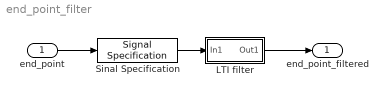
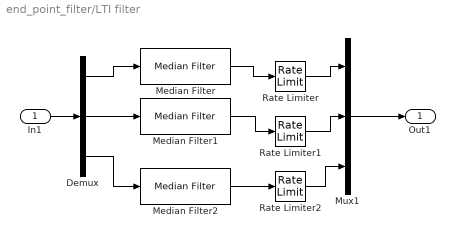
//
// File: end_point_filter.cpp
//
// Code generated for Simulink model 'end_point_filter'.
//
// Model version                  : 1.142
// Simulink Coder version         : 8.11 (R2016b) 25-Aug-2016
// C/C++ source code generated on : Sun Jun  9 11:45:23 2019
//
// Target selection: ert.tlc
// Embedded hardware selection: Intel->x86-64 (Windows64)
// Code generation objectives: Unspecified
// Validation result: Not run
//
#include "end_point_filter.h"

extern real_T PadBSymm_uD(const real_T u[], const int32_T uStride[], int32_T
  idx[], const int32_T uDims[], const int32_T uStart[], const int32_T uEnd[],
  const int32_T sNumPreEdges, const int32_T sPreEdges[], const int32_T
  sNumPostEdges, const int32_T sPostEdges[]);
extern void MdnFltH15_M_BSymm_uD_yD(const int32_T hLoc[], const int32_T hDims[],
  const real_T u[], const int32_T uDims[], real_T y[], const int32_T yDims[],
  const int32_T yOrigin[]);
real_T PadBSymm_uD(const real_T u[], const int32_T uStride[], int32_T idx[],
                   const int32_T uDims[], const int32_T uStart[], const int32_T
                   uEnd[], const int32_T sNumPreEdges, const int32_T sPreEdges[],
                   const int32_T sNumPostEdges, const int32_T sPostEdges[])
{
  real_T uOut;
  int32_T edgeNum;
  int32_T idxI;

  // S-Function (svipmdnfilter): '<S1>/Median Filter'
  // For boundary sectors:
  // -check if index is outside of input bounds ...
  //   -if so then return pad extended value
  //   -else fetch input data at the index
  // loop through preEdges
  for (edgeNum = 0; edgeNum < sNumPreEdges; edgeNum++) {
    if (idx[sPreEdges[edgeNum]] < uStart[sPreEdges[edgeNum]]) {
      // redirect index across a pre edge
      // reflect across pre-edge
      // check if it is a case of multiple reflections
      // get modulo distance
      idxI = ((uStart[sPreEdges[edgeNum]] - idx[sPreEdges[edgeNum]]) - 1) %
        (uDims[sPreEdges[edgeNum]] << 1);

      // if distance<dim then index is safe to be reflected
      if (idxI < uDims[sPreEdges[edgeNum]]) {
        idxI += uStart[sPreEdges[edgeNum]];

        // else d%dim is reflected across opposite edge
      } else {
        idxI = uEnd[sPreEdges[edgeNum]] - idxI % uDims[sPreEdges[edgeNum]];
      }

      idx[sPreEdges[edgeNum]] = idxI;
    }
  }

  // loop through postEdges
  for (edgeNum = 0; edgeNum < sNumPostEdges; edgeNum++) {
    if (idx[sPostEdges[edgeNum]] > uEnd[sPostEdges[edgeNum]]) {
      // redirect index across a post edge
      // reflect across post-edge
      // check if it is a case of multiple reflections
      // get modulo distance
      idxI = ((idx[sPostEdges[edgeNum]] - uEnd[sPostEdges[edgeNum]]) - 1) %
        (uDims[sPostEdges[edgeNum]] << 1);

      // if distance<dim then index is safe to be reflected
      if (idxI < uDims[sPostEdges[edgeNum]]) {
        idxI = uEnd[sPostEdges[edgeNum]] - idxI;

        // else d%dim is reflected across opposite edge
      } else {
        idxI = idxI % uDims[sPostEdges[edgeNum]] + uStart[sPostEdges[edgeNum]];
      }

      idx[sPostEdges[edgeNum]] = idxI;
    }
  }

  // linearize index and return input data
  uOut = u[idx[0U] * uStride[0U] + idx[1U] * uStride[1U]];

  // End of S-Function (svipmdnfilter): '<S1>/Median Filter'
  return uOut;
}

void MdnFltH15_M_BSymm_uD_yD(const int32_T hLoc[], const int32_T hDims[], const
  real_T u[], const int32_T uDims[], real_T y[], const int32_T yDims[], const
  int32_T yOrigin[])
{
  real_T acc;
  real_T uW[15];
  real_T pivot;
  int32_T uOrigin[2];
  int32_T uEnd[2];
  int32_T uStride[2];
  int32_T hEnd[2];
  int32_T yEnd[2];
  int32_T mLoc[10];
  int32_T mWidth[10];
  int32_T hPre;
  int32_T hPost;
  int32_T bPreEnd;
  int32_T bPostEnd;
  int32_T sStart[2];
  int32_T sEnd[2];
  int32_T sPreEdges[2];
  int32_T sPostEdges[2];
  int32_T c[2];
  int8_T o[5];
  boolean_T isEnd;
  boolean_T isSEmpty;
  boolean_T dimIsPre;
  int32_T offset[2];
  int32_T idxA[2];
  int32_T idxB[2];
  int32_T idxBLin[2];
  int32_T hIdxA[2];
  int32_T hIdxB[2];
  int32_T order;
  int32_T left;
  int32_T right;
  int32_T mid;
  int32_T rightIdx;
  real_T temp;

  // S-Function (svipmdnfilter): '<S1>/Median Filter'
  uOrigin[0U] = 0;
  uEnd[0U] = uDims[0U] - 1;
  uStride[0U] = 1;
  uOrigin[1U] = 0;
  uEnd[1U] = uDims[1U] - 1;
  uStride[1U] = uDims[0U];
  hEnd[0U] = hDims[0U] - 1;
  hEnd[1U] = hDims[1U] - 1;
  yEnd[0U] = yDims[0U] - 1;
  yEnd[1U] = yDims[1U] - 1;

  //  COMPUTE MARGINS BETWEEN INPUT AND OUTPUT
  // ===============================================
  //      _________________________________________
  //     |u                                        |
  //     |                                         |
  //     |         ______________________          |
  //     |        |y                     |         |
  //     |        |                      |         |
  //     |<-yPre->|                      |<-yPost->|
  //     |        |                      |         |
  //
  //  KERNEL MARIGINS
  // ==============================================
  //      ____________________
  //     |h                   |
  //     |        |<--hPost-->|
  //     |        |           |
  //     |        x(hCenter)  |
  //     |<-hPre->|           |
  //     |        |           |
  //
  //  MARGINS (Valid, Boundary and Outside) definitions:
  //  Valid Margin: Processing region where entire kernel stays inside input boundaries. All input data thus considered is 'valid' data 
  //  Boundary Margin: Processing region where part of kernel stays inside the input boundaries and part of it goes outside input boundaries. 
  //  Outside Margin: Processing region where entire kernel stays outside the input boundaries and never touches input data. In most situations this region does not need to be processed. Instead output pad values are filled in 
  // ===========================================================
  //   y |        |        |               |         |         |
  //     |<-oPre->|<-bPre->|<----valid---->|<-bPost->|<-oPost->|
  //     |        |        |               |         |         |
  //
  //  All margin locations are stored relative to the output origin
  // margins between y and u
  right = -yOrigin[0];
  mid = (yOrigin[0] + yEnd[0]) - uEnd[0];

  // margins caused by kernel - defined by center location
  // hLoc and hEnd are defined relative to origin
  hPre = -hLoc[0];
  hPost = hLoc[0] + hEnd[0];

  // margins outside of kernel's influence around input
  // note that we subtract h'Post' from y'Pre'
  rightIdx = right - hPost;

  // note that we subtract h'Pre' from y'Post'
  left = mid - hPre;
  hPre += right;
  hPost += mid;

  // W refers to margin Width
  // L refers to margin Location
  // outer Pre
  // saturate
  if (rightIdx < 0) {
    right = 0;
  } else if (rightIdx > yDims[0]) {
    right = yDims[0];
  } else {
    right = rightIdx;
  }

  // boundary Pre
  // saturate
  if (hPre < 0) {
    hPre = 0;
  } else {
    if (hPre > yDims[0]) {
      hPre = yDims[0];
    }
  }

  if (rightIdx < 0) {
    rightIdx = 0;
  } else {
    if (rightIdx > yDims[0]) {
      rightIdx = yDims[0];
    }
  }

  mid = hPre - rightIdx;
  rightIdx = yOrigin[0] + right;

  // outer Post
  // saturate
  if (left < 0) {
    hPre = 0;
  } else if (left > yDims[0]) {
    hPre = yDims[0];
  } else {
    hPre = left;
  }

  order = ((yOrigin[0] + yEnd[0]) - hPre) + 1;

  // boundary Post
  // saturate
  if (hPost < 0) {
    hPost = 0;
  } else {
    if (hPost > yDims[0]) {
      hPost = yDims[0];
    }
  }

  if (left < 0) {
    left = 0;
  } else {
    if (left > yDims[0]) {
      left = yDims[0];
    }
  }

  left = hPost - left;
  hPost = order - left;
  bPreEnd = rightIdx + mid;
  bPostEnd = hPost + left;
  if (bPreEnd - 1 >= hPost) {
    // defines situation where hDims > uDims
    mid = hPost - rightIdx;
    hPost = bPreEnd;
    left = bPostEnd - bPreEnd;
  }

  // assign to the margin set of mLoc and mWidth
  mLoc[0] = rightIdx + mid;
  mWidth[0] = (((yDims[0] - right) - hPre) - mid) - left;
  mLoc[2] = rightIdx;
  mWidth[2] = mid;
  mLoc[4] = hPost;
  mWidth[4] = left;
  mLoc[6] = yOrigin[0];
  mWidth[6] = right;
  mLoc[8] = order;
  mWidth[8] = hPre;

  // margins between y and u
  right = -yOrigin[1];
  mid = (yOrigin[1] + yEnd[1]) - uEnd[1];

  // margins caused by kernel - defined by center location
  // hLoc and hEnd are defined relative to origin
  hPre = -hLoc[1];
  hPost = hLoc[1] + hEnd[1];

  // margins outside of kernel's influence around input
  // note that we subtract h'Post' from y'Pre'
  rightIdx = right - hPost;

  // note that we subtract h'Pre' from y'Post'
  left = mid - hPre;
  hPre += right;
  hPost += mid;

  // W refers to margin Width
  // L refers to margin Location
  // outer Pre
  // saturate
  if (rightIdx < 0) {
    right = 0;
  } else if (rightIdx > yDims[1]) {
    right = yDims[1];
  } else {
    right = rightIdx;
  }

  // boundary Pre
  // saturate
  if (hPre < 0) {
    hPre = 0;
  } else {
    if (hPre > yDims[1]) {
      hPre = yDims[1];
    }
  }

  if (rightIdx < 0) {
    rightIdx = 0;
  } else {
    if (rightIdx > yDims[1]) {
      rightIdx = yDims[1];
    }
  }

  mid = hPre - rightIdx;
  rightIdx = yOrigin[1] + right;

  // outer Post
  // saturate
  if (left < 0) {
    hPre = 0;
  } else if (left > yDims[1]) {
    hPre = yDims[1];
  } else {
    hPre = left;
  }

  order = ((yOrigin[1] + yEnd[1]) - hPre) + 1;

  // boundary Post
  // saturate
  if (hPost < 0) {
    hPost = 0;
  } else {
    if (hPost > yDims[1]) {
      hPost = yDims[1];
    }
  }

  if (left < 0) {
    left = 0;
  } else {
    if (left > yDims[1]) {
      left = yDims[1];
    }
  }

  left = hPost - left;
  hPost = order - left;
  bPreEnd = rightIdx + mid;
  bPostEnd = hPost + left;
  if (bPreEnd - 1 >= hPost) {
    // defines situation where hDims > uDims
    mid = hPost - rightIdx;
    hPost = bPreEnd;
    left = bPostEnd - bPreEnd;
  }

  // assign to the margin set of mLoc and mWidth
  mLoc[1] = rightIdx + mid;
  mWidth[1] = (((yDims[1] - right) - hPre) - mid) - left;
  mLoc[3] = rightIdx;
  mWidth[3] = mid;
  mLoc[5] = hPost;
  mWidth[5] = left;
  mLoc[7] = yOrigin[1];
  mWidth[7] = right;
  mLoc[9] = order;
  mWidth[9] = hPre;

  //  //////////////////////////////////////////
  //  COMPUTE ON-BOUNDARY SECTORS
  //  //////////////////////////////////////////
  // ===========================================
  //   |   0   |   1   |   2   |   3   |   4   |
  //   | Inside| BndPre|BndPost| OutPre|OutPost|
  //    _______________________________________
  //   |       |///////|///////|       |       |
  //   | VALID |///////|///////|       |       |
  //  0| (0,0) |/(0,1)/|/(0,2)/| (0,3) | (0,4) |
  //   |       |///////|///////|       |       |
  //    _______________________________________
  //   |///////|///////|///////|       |       |
  //  1|/(1,0)/|/(1,1)/|/(1,2)/| (1,3) | (1,4) |
  //   |///////|///////|///////|       |       |
  //    _______________________________________
  //   |///////|///////|///////|       |       |
  //  2|/(2,0)/|/(2,1)/|/(2,2)/| (2,3) | (2,4) |
  //   |///////|///////|///////|       |       |
  //    _______________________________________
  //   |       |       |       |       |       |
  //  3| (3,0) | (3,1) | (3,2) | (3,3) | (3,4) |
  //   |       |       |       |       |       |
  //    _______________________________________
  //   |       |       |       |       |       |
  //  4| (4,0) | (4,1) | (4,2) | (4,3) | (4,4) |
  //   |       |       |       |       |       |
  //    ---------------------------------------
  o[0U] = 0;
  o[1U] = 1;
  o[2U] = 2;
  o[3U] = 3;
  o[4U] = 4;
  isEnd = false;
  c[0U] = 0;
  c[1U] = 0;

  // if hDims < uDims then the all INSIDE sector will not be pushed into the boundary sectors... hence the counter needs to skip the all INSIDEs sector and start from one sector down. 
  while (!isEnd) {
    hPre = 0;
    hPost = 0;

    // compute on-boundary sector
    // compute sector if not empty
    if (!((mWidth[o[c[0U]] << 1] <= 0) || (mWidth[(o[c[1U]] << 1) + 1] <= 0))) {
      // compute sector for this dim
      // sector start corresponds to margin loc
      // apply offset of margin width for sector end
      // Inside Sector if 0 in all dimensions
      isSEmpty = (o[c[0]] == 0);
      dimIsPre = ((o[c[0]] == 3) || (o[c[0]] == 1));
      if (dimIsPre || isSEmpty) {
        sPreEdges[0] = 0;
        hPre = 1;
      }

      if ((!(dimIsPre || isSEmpty)) || isSEmpty) {
        sPostEdges[0] = 0;
        hPost = 1;
      }

      // compute sector for this dim
      // sector start corresponds to margin loc
      // apply offset of margin width for sector end
      // Inside Sector if 0 in all dimensions
      isSEmpty = (o[c[1]] == 0);
      dimIsPre = ((o[c[1]] == 3) || (o[c[1]] == 1));
      if (dimIsPre || isSEmpty) {
        sPreEdges[hPre] = 1;
        hPre++;
      }

      if ((!(dimIsPre || isSEmpty)) || isSEmpty) {
        sPostEdges[hPost] = 1;
        hPost++;
      }

      // setup indices for the loops
      // Origin stores the origin of Y with respect to U
      //  where the origin of Y is at its top left corner
      // Compute offset between origin of Y and origin of U(0,0)
      offset[0U] = -yOrigin[0U];
      offset[1U] = -yOrigin[1U];

      // sector start and end were computed relative to U
      // make them relative to Y by adding offset
      sStart[0U] = mLoc[o[c[0]] << 1] + offset[0U];
      sEnd[0U] = ((mLoc[o[c[0]] << 1] + mWidth[o[c[0]] << 1]) + offset[0U]) - 1;
      sStart[1U] = mLoc[(o[c[1]] << 1) + 1] + offset[1U];
      sEnd[1U] = ((mLoc[(o[c[1]] << 1) + 1] + mWidth[(o[c[1]] << 1) + 1]) +
                  offset[1U]) - 1;

      // adjust offset for kernel center
      offset[0U] -= hLoc[0U];
      offset[1U] -= hLoc[1U];

      // loop kernel over data
      idxB[1U] = sStart[1U];
      while (idxB[1U] <= sEnd[1U]) {
        idxA[1U] = idxB[1U] - offset[1U];
        idxBLin[1U] = yDims[0U] * idxB[1U];
        idxB[0U] = sStart[0U];
        while (idxB[0U] <= sEnd[0U]) {
          idxA[0U] = idxB[0U] - offset[0U];
          idxBLin[0U] = idxBLin[1U] + idxB[0U];

          // loop over kernel and compute conv/corr
          bPreEnd = 0;

          // loop over kernel
          hIdxA[1U] = 0;
          while (hIdxA[1U] <= hEnd[1U]) {
            hIdxB[1U] = idxA[1U] + hIdxA[1U];
            hIdxA[0U] = 0;
            while (hIdxA[0U] <= hEnd[0U]) {
              hIdxB[0U] = idxA[0U] + hIdxA[0U];
              temp = PadBSymm_uD(&u[0U], &uStride[0U], &hIdxB[0U], &uDims[0U],
                                 &uOrigin[0U], &uEnd[0U], hPre, &sPreEdges[0U],
                                 hPost, &sPostEdges[0U]);

              // cache away u for the window
              uW[bPreEnd] = temp;
              bPreEnd++;
              hIdxA[0U]++;
            }

            hIdxA[1U]++;
          }

          bPreEnd = hDims[0U] * hDims[1U] - 1;
          order = ((bPreEnd + 2) >> 1) - 1;
          if ((bPreEnd + 1) % 2 == 0) {
            // Perform the scanning only if the current partition has
            // at least three elements.
            left = 0;
            right = bPreEnd;
            while (right > left + 1) {
              // Use the median of the three values as the partitioning key
              // Use median-of-three method to return the partitioning key (pivot). 
              // This method makes worst-case behavior much less likely and
              // avoids the needs for sentinel values outside the array.
              // //////////////////////////////////////////////////////////////////// 
              // First we sort the first, middle, and last element of the partition. 
              mid = (left + right) >> 1;
              if (uW[left] > uW[mid]) {
                temp = uW[left];
                uW[left] = uW[mid];
                uW[mid] = temp;
              }

              if (uW[left] > uW[right]) {
                temp = uW[left];
                uW[left] = uW[right];
                uW[right] = temp;
              }

              if (uW[mid] > uW[right]) {
                temp = uW[mid];
                uW[mid] = uW[right];
                uW[right] = temp;
              }

              // //////////////////////////////////////////////////////////////////// 
              // Now swap the middle value with the next-to-last value.
              temp = uW[mid];
              uW[mid] = uW[right - 1];
              uW[right - 1] = temp;

              // return pivot for partitioning
              pivot = uW[right - 1];

              // Start the partitioning scan.  Note that because we sorted
              // the left and right values, we can start the comparisons
              // with (left+1) and (right-2).  This is how we avoid the
              // need for sentinel values.
              mid = left;
              rightIdx = right - 1;
              isSEmpty = true;
              while (isSEmpty) {
                do {
                  mid++;
                } while (uW[mid] < pivot);

                do {
                  rightIdx--;
                } while (uW[rightIdx] > pivot);

                // pointers crossed -> end scan
                if (mid >= rightIdx) {
                  isSEmpty = false;
                } else {
                  // Swap values at end of current interval.
                  temp = uW[mid];
                  uW[mid] = uW[rightIdx];
                  uW[rightIdx] = temp;
                }
              }

              // One last swap needed at end of scan
              temp = uW[mid];
              uW[mid] = uW[right - 1];
              uW[right - 1] = temp;

              // Select the left or right subpartition depending on
              // the value of order.
              if (mid >= order) {
                right = mid - 1;
              }

              if (mid <= order) {
                left = mid + 1;
              }
            }

            if ((right - left == 1) && (uW[left] > uW[right])) {
              // Last partition has two elements that may not be sorted.
              temp = uW[left];
              uW[left] = uW[right];
              uW[right] = temp;
            }

            acc = uW[order];

            // Perform the scanning only if the current partition has
            // at least three elements.
            left = 0;
            right = bPreEnd;
            while (right > left + 1) {
              // Use the median of the three values as the partitioning key
              // Use median-of-three method to return the partitioning key (pivot). 
              // This method makes worst-case behavior much less likely and
              // avoids the needs for sentinel values outside the array.
              // //////////////////////////////////////////////////////////////////// 
              // First we sort the first, middle, and last element of the partition. 
              mid = (left + right) >> 1;
              if (uW[left] > uW[mid]) {
                temp = uW[left];
                uW[left] = uW[mid];
                uW[mid] = temp;
              }

              if (uW[left] > uW[right]) {
                temp = uW[left];
                uW[left] = uW[right];
                uW[right] = temp;
              }

              if (uW[mid] > uW[right]) {
                temp = uW[mid];
                uW[mid] = uW[right];
                uW[right] = temp;
              }

              // //////////////////////////////////////////////////////////////////// 
              // Now swap the middle value with the next-to-last value.
              temp = uW[mid];
              uW[mid] = uW[right - 1];
              uW[right - 1] = temp;

              // return pivot for partitioning
              pivot = uW[right - 1];

              // Start the partitioning scan.  Note that because we sorted
              // the left and right values, we can start the comparisons
              // with (left+1) and (right-2).  This is how we avoid the
              // need for sentinel values.
              mid = left;
              rightIdx = right - 1;
              isSEmpty = true;
              while (isSEmpty) {
                do {
                  mid++;
                } while (uW[mid] < pivot);

                do {
                  rightIdx--;
                } while (uW[rightIdx] > pivot);

                // pointers crossed -> end scan
                if (mid >= rightIdx) {
                  isSEmpty = false;
                } else {
                  // Swap values at end of current interval.
                  temp = uW[mid];
                  uW[mid] = uW[rightIdx];
                  uW[rightIdx] = temp;
                }
              }

              // One last swap needed at end of scan
              temp = uW[mid];
              uW[mid] = uW[right - 1];
              uW[right - 1] = temp;

              // Select the left or right subpartition depending on
              // the value of order.
              if (mid >= order + 1) {
                right = mid - 1;
              }

              if (mid <= order + 1) {
                left = mid + 1;
              }
            }

            if ((right - left == 1) && (uW[left] > uW[right])) {
              // Last partition has two elements that may not be sorted.
              temp = uW[left];
              uW[left] = uW[right];
              uW[right] = temp;
            }

            acc += uW[order + 1];
            acc /= 2.0;
          } else {
            // Perform the scanning only if the current partition has
            // at least three elements.
            left = 0;
            right = bPreEnd;
            while (right > left + 1) {
              // Use the median of the three values as the partitioning key
              // Use median-of-three method to return the partitioning key (pivot). 
              // This method makes worst-case behavior much less likely and
              // avoids the needs for sentinel values outside the array.
              // //////////////////////////////////////////////////////////////////// 
              // First we sort the first, middle, and last element of the partition. 
              mid = (left + right) >> 1;
              if (uW[left] > uW[mid]) {
                temp = uW[left];
                uW[left] = uW[mid];
                uW[mid] = temp;
              }

              if (uW[left] > uW[right]) {
                temp = uW[left];
                uW[left] = uW[right];
                uW[right] = temp;
              }

              if (uW[mid] > uW[right]) {
                temp = uW[mid];
                uW[mid] = uW[right];
                uW[right] = temp;
              }

              // //////////////////////////////////////////////////////////////////// 
              // Now swap the middle value with the next-to-last value.
              temp = uW[mid];
              uW[mid] = uW[right - 1];
              uW[right - 1] = temp;

              // return pivot for partitioning
              pivot = uW[right - 1];

              // Start the partitioning scan.  Note that because we sorted
              // the left and right values, we can start the comparisons
              // with (left+1) and (right-2).  This is how we avoid the
              // need for sentinel values.
              mid = left;
              rightIdx = right - 1;
              isSEmpty = true;
              while (isSEmpty) {
                do {
                  mid++;
                } while (uW[mid] < pivot);

                do {
                  rightIdx--;
                } while (uW[rightIdx] > pivot);

                // pointers crossed -> end scan
                if (mid >= rightIdx) {
                  isSEmpty = false;
                } else {
                  // Swap values at end of current interval.
                  temp = uW[mid];
                  uW[mid] = uW[rightIdx];
                  uW[rightIdx] = temp;
                }
              }

              // One last swap needed at end of scan
              temp = uW[mid];
              uW[mid] = uW[right - 1];
              uW[right - 1] = temp;

              // Select the left or right subpartition depending on
              // the value of order.
              if (mid >= order) {
                right = mid - 1;
              }

              if (mid <= order) {
                left = mid + 1;
              }
            }

            if ((right - left == 1) && (uW[left] > uW[right])) {
              // Last partition has two elements that may not be sorted.
              temp = uW[left];
              uW[left] = uW[right];
              uW[right] = temp;
            }

            acc = uW[order];
          }

          if (idxBLin[0U] >= 0) {
            y[idxBLin[0U]] = acc;
          }

          idxB[0U]++;
        }

        idxB[1U]++;
      }
    }

    // advance sector counter
    hPre = 0;
    while (hPre < 2) {
      c[hPre]++;
      if (c[hPre] <= 2) {
        isEnd = false;
        hPre = 2;
      } else {
        c[hPre] = 0;
        isEnd = true;
      }

      hPre++;
    }
  }

  // End of S-Function (svipmdnfilter): '<S1>/Median Filter'
}

// Model step function
void end_poing_filter::step(real_T (&arg_end_point)[3], real_T
  (&arg_end_point_filtered)[3])
{
  int32_T h1Dims[2];
  int32_T uDims[2];
  int32_T yDims[2];
  int32_T hLoc[2];
  int32_T yOrigin[2];
  real_T rateLimiterRate;
  int32_T h1Dims_0[2];
  int32_T uDims_0[2];
  int32_T yDims_0[2];
  int32_T hLoc_0[2];
  int32_T yOrigin_0[2];
  int32_T h1Dims_1[2];
  int32_T uDims_1[2];
  int32_T yDims_1[2];
  int32_T hLoc_1[2];
  int32_T yOrigin_1[2];
  real_T rtb_RateLimiter2;
  real_T rtb_RateLimiter1;
  real_T rtb_RateLimiter;

  // S-Function (svipmdnfilter): '<S1>/Median Filter' incorporates:
  //   Inport: '<Root>/end_point'

  h1Dims[0U] = 5;
  h1Dims[1U] = 3;
  uDims[0U] = 1;
  uDims[1U] = 1;

  // set up kernel related coordinates
  // compute center
  // hLoc is the location of top left corner relative to the center of kernel.
  hLoc[0U] = -2;

  // compute center
  // hLoc is the location of top left corner relative to the center of kernel.
  hLoc[1U] = -1;

  // Region of Support (ROS) definition: A selected region that restricts the input space for processing. 
  // ======================================================
  //                       ---------------------
  //                      |ROI                  |
  //                      |                     |
  //  ----------------------------------------------------
  // | INPUT(u)           |                     |         |
  // |                    |                     |         |
  // |   ---------------------------------------------    |
  // |  | ROS             |OUTPUT(y)////////////|     |   |
  // |  |                 |/////////////////////|     |   |
  // |  |                  ---------------------      |   |
  // |  |                                             |   |
  // The user's output mode choices of 'Valid', 'Same as input' and 'Full' map onto correspending definitions of a rectangular ROS. 
  // Output range support is computed as an intersection of ROS with Region of Interest (ROI) 
  // /////////////////////
  // begin ROS computation
  // compute ROS based on u, h and output mode
  // ROS is SAME AS INPUT
  // end ROS computation
  // ///////////////////
  // /////////////////////////
  // begin y sizes computation
  // we need to compute yOrigin and yEnd
  // yOrigin definition: Location of center of reference (origin) of output (y) coordintate system with respect to input (u) coordinate system 
  // y sizes are same as ros sizes because there is no ROI
  yOrigin[0U] = 0;
  yDims[0U] = 1;

  // y sizes are same as ros sizes because there is no ROI
  yOrigin[1U] = 0;
  yDims[1U] = 1;

  // make yOrigin same as roiLoc when y is empty
  // end y sizes computation
  // ///////////////////////
  MdnFltH15_M_BSymm_uD_yD(&hLoc[0U], &h1Dims[0U], &arg_end_point[0], &uDims[0U],
    &rtb_RateLimiter, &yDims[0U], &yOrigin[0U]);

  // RateLimiter: '<S1>/Rate Limiter'
  rateLimiterRate = rtb_RateLimiter - end_point_filter_DW.PrevY;
  if (rateLimiterRate > 0.0008) {
    rtb_RateLimiter = end_point_filter_DW.PrevY + 0.0008;
  } else {
    if (rateLimiterRate < -0.0008) {
      rtb_RateLimiter = end_point_filter_DW.PrevY + -0.0008;
    }
  }

  end_point_filter_DW.PrevY = rtb_RateLimiter;

  // End of RateLimiter: '<S1>/Rate Limiter'

  // S-Function (svipmdnfilter): '<S1>/Median Filter1' incorporates:
  //   Inport: '<Root>/end_point'

  h1Dims_0[0U] = 5;
  h1Dims_0[1U] = 3;
  uDims_0[0U] = 1;
  uDims_0[1U] = 1;

  // set up kernel related coordinates
  // compute center
  // hLoc is the location of top left corner relative to the center of kernel.
  hLoc_0[0U] = -2;

  // compute center
  // hLoc is the location of top left corner relative to the center of kernel.
  hLoc_0[1U] = -1;

  // Region of Support (ROS) definition: A selected region that restricts the input space for processing. 
  // ======================================================
  //                       ---------------------
  //                      |ROI                  |
  //                      |                     |
  //  ----------------------------------------------------
  // | INPUT(u)           |                     |         |
  // |                    |                     |         |
  // |   ---------------------------------------------    |
  // |  | ROS             |OUTPUT(y)////////////|     |   |
  // |  |                 |/////////////////////|     |   |
  // |  |                  ---------------------      |   |
  // |  |                                             |   |
  // The user's output mode choices of 'Valid', 'Same as input' and 'Full' map onto correspending definitions of a rectangular ROS. 
  // Output range support is computed as an intersection of ROS with Region of Interest (ROI) 
  // /////////////////////
  // begin ROS computation
  // compute ROS based on u, h and output mode
  // ROS is SAME AS INPUT
  // end ROS computation
  // ///////////////////
  // /////////////////////////
  // begin y sizes computation
  // we need to compute yOrigin and yEnd
  // yOrigin definition: Location of center of reference (origin) of output (y) coordintate system with respect to input (u) coordinate system 
  // y sizes are same as ros sizes because there is no ROI
  yOrigin_0[0U] = 0;
  yDims_0[0U] = 1;

  // y sizes are same as ros sizes because there is no ROI
  yOrigin_0[1U] = 0;
  yDims_0[1U] = 1;

  // make yOrigin same as roiLoc when y is empty
  // end y sizes computation
  // ///////////////////////
  MdnFltH15_M_BSymm_uD_yD(&hLoc_0[0U], &h1Dims_0[0U], &arg_end_point[1],
    &uDims_0[0U], &rtb_RateLimiter1, &yDims_0[0U], &yOrigin_0[0U]);

  // RateLimiter: '<S1>/Rate Limiter1'
  rateLimiterRate = rtb_RateLimiter1 - end_point_filter_DW.PrevY_p;
  if (rateLimiterRate > 0.0008) {
    rtb_RateLimiter1 = end_point_filter_DW.PrevY_p + 0.0008;
  } else {
    if (rateLimiterRate < -0.0008) {
      rtb_RateLimiter1 = end_point_filter_DW.PrevY_p + -0.0008;
    }
  }

  end_point_filter_DW.PrevY_p = rtb_RateLimiter1;

  // End of RateLimiter: '<S1>/Rate Limiter1'

  // S-Function (svipmdnfilter): '<S1>/Median Filter2' incorporates:
  //   Inport: '<Root>/end_point'

  h1Dims_1[0U] = 5;
  h1Dims_1[1U] = 3;
  uDims_1[0U] = 1;
  uDims_1[1U] = 1;

  // set up kernel related coordinates
  // compute center
  // hLoc is the location of top left corner relative to the center of kernel.
  hLoc_1[0U] = -2;

  // compute center
  // hLoc is the location of top left corner relative to the center of kernel.
  hLoc_1[1U] = -1;

  // Region of Support (ROS) definition: A selected region that restricts the input space for processing. 
  // ======================================================
  //                       ---------------------
  //                      |ROI                  |
  //                      |                     |
  //  ----------------------------------------------------
  // | INPUT(u)           |                     |         |
  // |                    |                     |         |
  // |   ---------------------------------------------    |
  // |  | ROS             |OUTPUT(y)////////////|     |   |
  // |  |                 |/////////////////////|     |   |
  // |  |                  ---------------------      |   |
  // |  |                                             |   |
  // The user's output mode choices of 'Valid', 'Same as input' and 'Full' map onto correspending definitions of a rectangular ROS. 
  // Output range support is computed as an intersection of ROS with Region of Interest (ROI) 
  // /////////////////////
  // begin ROS computation
  // compute ROS based on u, h and output mode
  // ROS is SAME AS INPUT
  // end ROS computation
  // ///////////////////
  // /////////////////////////
  // begin y sizes computation
  // we need to compute yOrigin and yEnd
  // yOrigin definition: Location of center of reference (origin) of output (y) coordintate system with respect to input (u) coordinate system 
  // y sizes are same as ros sizes because there is no ROI
  yOrigin_1[0U] = 0;
  yDims_1[0U] = 1;

  // y sizes are same as ros sizes because there is no ROI
  yOrigin_1[1U] = 0;
  yDims_1[1U] = 1;

  // make yOrigin same as roiLoc when y is empty
  // end y sizes computation
  // ///////////////////////
  MdnFltH15_M_BSymm_uD_yD(&hLoc_1[0U], &h1Dims_1[0U], &arg_end_point[2],
    &uDims_1[0U], &rtb_RateLimiter2, &yDims_1[0U], &yOrigin_1[0U]);

  // RateLimiter: '<S1>/Rate Limiter2'
  rateLimiterRate = rtb_RateLimiter2 - end_point_filter_DW.PrevY_o;
  if (rateLimiterRate > 0.0008) {
    rtb_RateLimiter2 = end_point_filter_DW.PrevY_o + 0.0008;
  } else {
    if (rateLimiterRate < -0.0008) {
      rtb_RateLimiter2 = end_point_filter_DW.PrevY_o + -0.0008;
    }
  }

  end_point_filter_DW.PrevY_o = rtb_RateLimiter2;

  // End of RateLimiter: '<S1>/Rate Limiter2'

  // Outport: '<Root>/end_point_filtered'
  arg_end_point_filtered[0] = rtb_RateLimiter;
  arg_end_point_filtered[1] = rtb_RateLimiter1;
  arg_end_point_filtered[2] = rtb_RateLimiter2;
}
